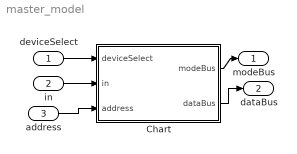
== stateflow chart master_model/Chart ==
  state init
  state initSend
  state addressSend
  state sendMsg
  state getReport
  (default) -> init
  init -> initSend : [deviceSelect==1 || deviceSelect==2]{dataBus=1}
  initSend -> addressSend : {dataBus=address}
  sendMsg -> init [order 2] : [deviceSelect==1 || deviceSelect==2]{dataBus=0}
  addressSend -> getReport : {modeBus=1}
  getReport -> sendMsg : {modeBus=0; dataBus=in}
  sendMsg -> getReport [order 1] : [deviceSelect ~=1 && deviceSelect~=2]{modeBus=1}
  data: modeBus output uint8; dataBus output uint8; deviceSelect input uint8; in input uint8; address input uint8

/*
 * File: master_model.c
 *
 * Code generated for Simulink model 'master_model'.
 *
 * Model version                  : 1.9
 * Simulink Coder version         : 9.3 (R2020a) 18-Nov-2019
 * C/C++ source code generated on : Thu Jan 21 23:59:07 2021
 *
 * Target selection: ert.tlc
 * Embedded hardware selection: Atmel->AVR
 * Code generation objectives: Unspecified
 * Validation result: Not run
 */

#include "master_model.h"
#include "master_model_private.h"

/* Named constants for Chart: '<Root>/Chart' */
#define master_model_IN_addressSend    ((uint8_T)1U)
#define master_model_IN_getReport      ((uint8_T)2U)
#define master_model_IN_init           ((uint8_T)3U)
#define master_model_IN_initSend       ((uint8_T)4U)
#define master_model_IN_sendMsg        ((uint8_T)5U)

/* Block states (default storage) */
DW_master_model_T master_model_DW;

/* External inputs (root inport signals with default storage) */
ExtU_master_model_T master_model_U;

/* External outputs (root outports fed by signals with default storage) */
ExtY_master_model_T master_model_Y;

/* Real-time model */
RT_MODEL_master_model_T master_model_M_;
RT_MODEL_master_model_T *const master_model_M = &master_model_M_;

/* Model step function */
void master_model_step(void)
{
  /* Chart: '<Root>/Chart' incorporates:
   *  Inport: '<Root>/deviceSelect'
   */
  if (master_model_DW.is_active_c3_master_model == 0U) {
    master_model_DW.is_active_c3_master_model = 1U;
    master_model_DW.is_c3_master_model = master_model_IN_init;
  } else {
    switch (master_model_DW.is_c3_master_model) {
     case master_model_IN_addressSend:
      /* Outport: '<Root>/modeBus' */
      master_model_Y.modeBus = 1U;
      master_model_DW.is_c3_master_model = master_model_IN_getReport;
      break;

     case master_model_IN_getReport:
      /* Outport: '<Root>/modeBus' */
      master_model_Y.modeBus = 0U;

      /* Outport: '<Root>/dataBus' incorporates:
       *  Inport: '<Root>/in'
       */
      master_model_Y.dataBus = master_model_U.in;
      master_model_DW.is_c3_master_model = master_model_IN_sendMsg;
      break;

     case master_model_IN_init:
      if ((master_model_U.deviceSelect == 1) || (master_model_U.deviceSelect ==
           2)) {
        /* Outport: '<Root>/dataBus' */
        master_model_Y.dataBus = 1U;
        master_model_DW.is_c3_master_model = master_model_IN_initSend;
      }
      break;

     case master_model_IN_initSend:
      /* Outport: '<Root>/dataBus' incorporates:
       *  Inport: '<Root>/address'
       */
      master_model_Y.dataBus = master_model_U.address;
      master_model_DW.is_c3_master_model = master_model_IN_addressSend;
      break;

     default:
      /* case IN_sendMsg: */
      if ((master_model_U.deviceSelect != 1) && (master_model_U.deviceSelect !=
           2)) {
        /* Outport: '<Root>/modeBus' */
        master_model_Y.modeBus = 1U;
        master_model_DW.is_c3_master_model = master_model_IN_getReport;
      } else {
        if ((master_model_U.deviceSelect == 1) || (master_model_U.deviceSelect ==
             2)) {
          /* Outport: '<Root>/dataBus' */
          master_model_Y.dataBus = 0U;
          master_model_DW.is_c3_master_model = master_model_IN_init;
        }
      }
      break;
    }
  }

  /* End of Chart: '<Root>/Chart' */
}
